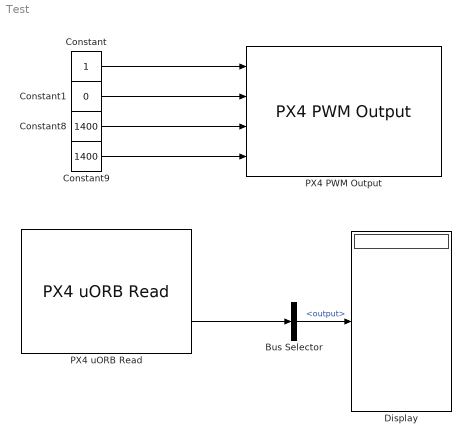
//
// Academic License - for use in teaching, academic research, and meeting
// course requirements at degree granting institutions only.  Not for
// government, commercial, or other organizational use.
//
// File: Test.cpp
//
// Code generated for Simulink model 'Test'.
//
// Model version                  : 1.2
// Simulink Coder version         : 9.4 (R2020b) 29-Jul-2020
// C/C++ source code generated on : Tue Jul 20 20:33:29 2021
//
// Target selection: ert.tlc
// Embedded hardware selection: ARM Compatible->ARM Cortex
// Code generation objectives: Unspecified
// Validation result: Not run
//
#include "Test.h"
#include "Test_private.h"
#include "Test_dt.h"

// Block signals (default storage)
B_Test_T Test_B;

// Block states (default storage)
DW_Test_T Test_DW;

// Real-time model
RT_MODEL_Test_T Test_M_ = RT_MODEL_Test_T();
RT_MODEL_Test_T *const Test_M = &Test_M_;

// Forward declaration for local functions
static void Test_SystemCore_setup(px4_internal_block_PWM_Test_T *obj, boolean_T
  varargin_1, boolean_T varargin_2);
static void Test_SystemCore_setup(px4_internal_block_PWM_Test_T *obj, boolean_T
  varargin_1, boolean_T varargin_2)
{
  uint16_T status;
  obj->isSetupComplete = false;
  obj->isInitialized = 1;
  obj->isMain = true;
  obj->pwmDevObj = MW_PWM_OUTPUT_MAIN_DEVICE_PATH;
  status = pwm_open(&obj->pwmDevHandler, obj->pwmDevObj,
                    &obj->actuatorAdvertiseObj, &obj->armAdvertiseObj);
  obj->errorStatus = static_cast<uint16_T>(obj->errorStatus | status);
  obj->servoCount = 0;
  status = pwm_getServoCount(&obj->pwmDevHandler, &obj->servoCount);
  obj->errorStatus = static_cast<uint16_T>(obj->errorStatus | status);
  if (varargin_1) {
    status = pwm_arm(&obj->pwmDevHandler, &obj->armAdvertiseObj);
    obj->isArmed = true;
  } else {
    status = pwm_disarm(&obj->pwmDevHandler, &obj->armAdvertiseObj);
    obj->isArmed = false;
  }

  obj->errorStatus = static_cast<uint16_T>(obj->errorStatus | status);
  status = pwm_setPWMRate(&obj->pwmDevHandler, obj->isMain);
  obj->errorStatus = static_cast<uint16_T>(obj->errorStatus | status);
  obj->channelMask = 3;
  status = pwm_setChannelMask(&obj->pwmDevHandler, obj->channelMask);
  obj->errorStatus = static_cast<uint16_T>(obj->errorStatus | status);
  status = pwm_setFailsafePWM(&obj->pwmDevHandler, obj->servoCount,
    obj->channelMask, obj->isMain);
  obj->errorStatus = static_cast<uint16_T>(obj->errorStatus | status);
  status = pwm_setDisarmedPWM(&obj->pwmDevHandler, obj->servoCount,
    obj->channelMask, obj->isMain, &obj->actuatorAdvertiseObj);
  obj->errorStatus = static_cast<uint16_T>(obj->errorStatus | status);
  if (obj->isMain) {
    status = pwm_forceFailsafe(&obj->pwmDevHandler, varargin_2);
    obj->errorStatus = static_cast<uint16_T>(obj->errorStatus | status);
    status = pwm_forceTerminateFailsafe(&obj->pwmDevHandler, false);
    obj->errorStatus = static_cast<uint16_T>(obj->errorStatus | status);
  }

  obj->isSetupComplete = true;
}

// Model step function
void Test_step(void)
{
  int32_T i;
  uint16_T b_pwmValue[8];
  uint16_T status;
  boolean_T b_varargout_1;

  // Reset subsysRan breadcrumbs
  srClearBC(Test_DW.EnabledSubsystem_SubsysRanBC);

  // MATLABSystem: '<S1>/SourceBlock' incorporates:
  //   Inport: '<S2>/In1'

  b_varargout_1 = uORB_read_step(Test_DW.obj_e.orbMetadataObj,
    &Test_DW.obj_e.eventStructObj, &Test_B.b_varargout_2, false, 1.0);

  // Outputs for Enabled SubSystem: '<S1>/Enabled Subsystem' incorporates:
  //   EnablePort: '<S2>/Enable'

  if (b_varargout_1) {
    Test_B.In1 = Test_B.b_varargout_2;
    srUpdateBC(Test_DW.EnabledSubsystem_SubsysRanBC);
  }

  // End of MATLABSystem: '<S1>/SourceBlock'
  // End of Outputs for SubSystem: '<S1>/Enabled Subsystem'

  // SignalConversion generated from: '<Root>/Bus Selector'
  memcpy(&Test_B.output[0], &Test_B.In1.output[0], sizeof(real32_T) << 4U);

  // MATLABSystem: '<Root>/PX4 PWM Output' incorporates:
  //   Constant: '<Root>/Constant'
  //   Constant: '<Root>/Constant1'
  //   Constant: '<Root>/Constant8'
  //   Constant: '<Root>/Constant9'

  if (Test_P.Constant_Value_c) {
    if (!Test_DW.obj.isArmed) {
      Test_DW.obj.isArmed = true;
      status = pwm_arm(&Test_DW.obj.pwmDevHandler, &Test_DW.obj.armAdvertiseObj);
      Test_DW.obj.errorStatus = static_cast<uint16_T>(Test_DW.obj.errorStatus |
        status);
    }

    for (i = 0; i < 8; i++) {
      b_pwmValue[i] = 0U;
    }

    b_pwmValue[0] = Test_P.Constant8_Value;
    b_pwmValue[1] = Test_P.Constant9_Value;
    status = pwm_setServo(&Test_DW.obj.pwmDevHandler, Test_DW.obj.servoCount,
                          Test_DW.obj.channelMask, &b_pwmValue[0],
                          Test_DW.obj.isMain, &Test_DW.obj.actuatorAdvertiseObj);
    Test_DW.obj.errorStatus = static_cast<uint16_T>(Test_DW.obj.errorStatus |
      status);
  } else {
    status = pwm_disarm(&Test_DW.obj.pwmDevHandler, &Test_DW.obj.armAdvertiseObj);
    Test_DW.obj.errorStatus = static_cast<uint16_T>(Test_DW.obj.errorStatus |
      status);
    Test_DW.obj.isArmed = false;
    status = pwm_resetServo(&Test_DW.obj.pwmDevHandler, Test_DW.obj.servoCount,
      Test_DW.obj.channelMask, Test_DW.obj.isMain,
      &Test_DW.obj.actuatorAdvertiseObj);
    Test_DW.obj.errorStatus = static_cast<uint16_T>(Test_DW.obj.errorStatus |
      status);
  }

  if (Test_DW.obj.isMain) {
    status = pwm_forceFailsafe(&Test_DW.obj.pwmDevHandler,
      Test_P.Constant1_Value);
    Test_DW.obj.errorStatus = static_cast<uint16_T>(Test_DW.obj.errorStatus |
      status);
  }

  // End of MATLABSystem: '<Root>/PX4 PWM Output'

  // External mode
  rtExtModeUploadCheckTrigger(1);

  {                                    // Sample time: [0.001s, 0.0s]
    rtExtModeUpload(0, (real_T)Test_M->Timing.taskTime0);
  }

  // signal main to stop simulation
  {                                    // Sample time: [0.001s, 0.0s]
    if ((rtmGetTFinal(Test_M)!=-1) &&
        !((rtmGetTFinal(Test_M)-Test_M->Timing.taskTime0) >
          Test_M->Timing.taskTime0 * (DBL_EPSILON))) {
      rtmSetErrorStatus(Test_M, "Simulation finished");
    }

    if (rtmGetStopRequested(Test_M)) {
      rtmSetErrorStatus(Test_M, "Simulation finished");
    }
  }

  // Update absolute time for base rate
  // The "clockTick0" counts the number of times the code of this task has
  //  been executed. The absolute time is the multiplication of "clockTick0"
  //  and "Timing.stepSize0". Size of "clockTick0" ensures timer will not
  //  overflow during the application lifespan selected.

  Test_M->Timing.taskTime0 =
    ((time_T)(++Test_M->Timing.clockTick0)) * Test_M->Timing.stepSize0;
}
